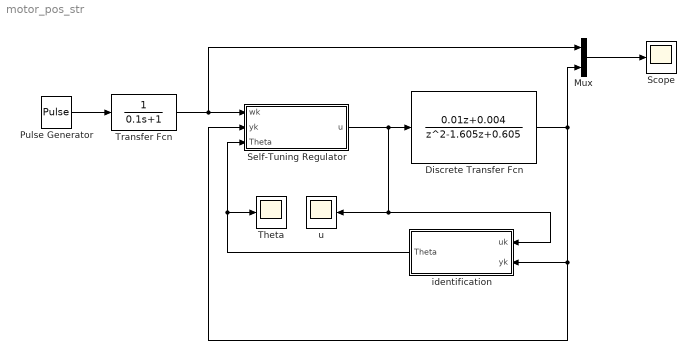
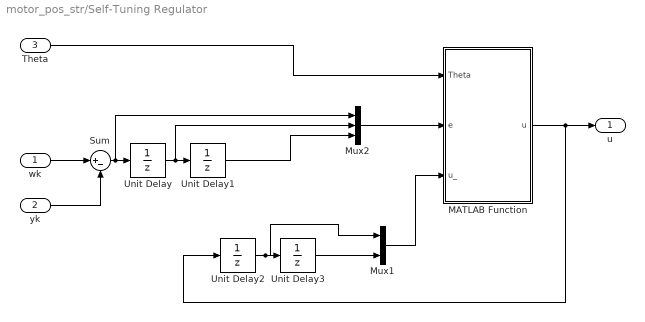
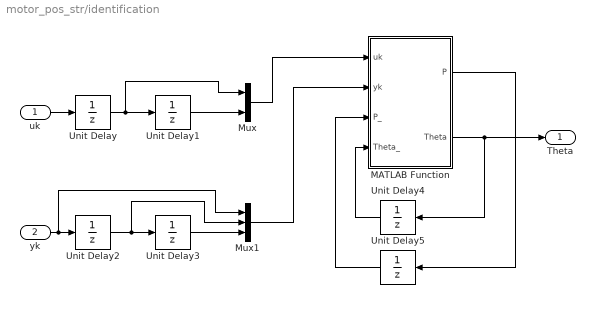
== matlab function motor_pos_str/Self-Tuning
Regulator/MATLAB Function ==
% Ham tinh thong so bo dieu khien theo pp dat cuc lien tuc
function u = STR_pp1(Theta,e,u_)

T0 = 0.005;
xi = 0.9;
wn = 50;

% Gan lai thong so de thuan tien viec tinh toan
a1 = Theta(1);
a2 = Theta(2);
b1 = Theta(3);
b2 = Theta(4);

% Tinh thong so bo dieu khien
if(xi<1)
d1 = -2*exp(-xi*wn*T0)*cos(wn*T0*sqrt(1-xi^2)); % xi<1
else
d1 = -2*exp(-xi*wn*T0)*cosh(wn*T0*sqrt(xi^2-1)); % xi>1
end
d2 = exp(-2*xi*wn*T0);
r1 = (b1+b2)*(a1*b1*b2-a2*b1^2-b2^2);
s1 = a2*((b1+b2)*(a1*b2-a2*b1)+b2*(b1*d2-b2*d1-b2));
q2 = s1/r1;
gama = q2*b2/a2;
q1 = a2/b2-q2*(b1/b2-a1/a2+1);
q0 = 1/b1*(d1+1-a1-gama);

% Luat dieu khien
u = q0*e(1) + q1*e(2) + q2*e(3) + (1-gama)*u_(1) + gama*u_(2);

== matlab function motor_pos_str/identification/MATLAB Function ==
function [P,Theta] = Uocluong(uk,yk,P_,Theta_)
lamda = 0.96;
PHI = [-yk(2); -yk(3); uk(1); uk(2)];
e = yk(1) - PHI'*Theta_;
L = P_*PHI / (lamda + PHI'*P_*PHI);
P = 1/lamda*(P_ - P_*PHI*PHI'*P_ /(lamda + PHI'*P_*PHI));
Theta = Theta_ + L*e;

/*
 * motor_pos_str.c
 *
 * Code generation for model "motor_pos_str".
 *
 * Model version              : 1.1
 * Simulink Coder version : 8.14 (R2018a) 06-Feb-2018
 * C source code generated on : Thu Dec 31 10:35:15 2020
 *
 * Target selection: grt.tlc
 * Note: GRT includes extra infrastructure and instrumentation for prototyping
 * Embedded hardware selection: Intel->x86-64 (Windows64)
 * Code generation objectives: Unspecified
 * Validation result: Not run
 */

#include "motor_pos_str.h"
#include "motor_pos_str_private.h"

/* Block signals (default storage) */
B_motor_pos_str_T motor_pos_str_B;

/* Continuous states */
X_motor_pos_str_T motor_pos_str_X;

/* Block states (default storage) */
DW_motor_pos_str_T motor_pos_str_DW;

/* Real-time model */
RT_MODEL_motor_pos_str_T motor_pos_str_M_;
RT_MODEL_motor_pos_str_T *const motor_pos_str_M = &motor_pos_str_M_;

/*
 * This function updates continuous states using the ODE3 fixed-step
 * solver algorithm
 */
static void rt_ertODEUpdateContinuousStates(RTWSolverInfo *si )
{
  /* Solver Matrices */
  static const real_T rt_ODE3_A[3] = {
    1.0/2.0, 3.0/4.0, 1.0
  };

  static const real_T rt_ODE3_B[3][3] = {
    { 1.0/2.0, 0.0, 0.0 },

    { 0.0, 3.0/4.0, 0.0 },

    { 2.0/9.0, 1.0/3.0, 4.0/9.0 }
  };

  time_T t = rtsiGetT(si);
  time_T tnew = rtsiGetSolverStopTime(si);
  time_T h = rtsiGetStepSize(si);
  real_T *x = rtsiGetContStates(si);
  ODE3_IntgData *id = (ODE3_IntgData *)rtsiGetSolverData(si);
  real_T *y = id->y;
  real_T *f0 = id->f[0];
  real_T *f1 = id->f[1];
  real_T *f2 = id->f[2];
  real_T hB[3];
  int_T i;
  int_T nXc = 1;
  rtsiSetSimTimeStep(si,MINOR_TIME_STEP);

  /* Save the state values at time t in y, we'll use x as ynew. */
  (void) memcpy(y, x,
                (uint_T)nXc*sizeof(real_T));

  /* Assumes that rtsiSetT and ModelOutputs are up-to-date */
  /* f0 = f(t,y) */
  rtsiSetdX(si, f0);
  motor_pos_str_derivatives();

  /* f(:,2) = feval(odefile, t + hA(1), y + f*hB(:,1), args(:)(*)); */
  hB[0] = h * rt_ODE3_B[0][0];
  for (i = 0; i < nXc; i++) {
    x[i] = y[i] + (f0[i]*hB[0]);
  }

  rtsiSetT(si, t + h*rt_ODE3_A[0]);
  rtsiSetdX(si, f1);
  motor_pos_str_step();
  motor_pos_str_derivatives();

  /* f(:,3) = feval(odefile, t + hA(2), y + f*hB(:,2), args(:)(*)); */
  for (i = 0; i <= 1; i++) {
    hB[i] = h * rt_ODE3_B[1][i];
  }

  for (i = 0; i < nXc; i++) {
    x[i] = y[i] + (f0[i]*hB[0] + f1[i]*hB[1]);
  }

  rtsiSetT(si, t + h*rt_ODE3_A[1]);
  rtsiSetdX(si, f2);
  motor_pos_str_step();
  motor_pos_str_derivatives();

  /* tnew = t + hA(3);
     ynew = y + f*hB(:,3); */
  for (i = 0; i <= 2; i++) {
    hB[i] = h * rt_ODE3_B[2][i];
  }

  for (i = 0; i < nXc; i++) {
    x[i] = y[i] + (f0[i]*hB[0] + f1[i]*hB[1] + f2[i]*hB[2]);
  }

  rtsiSetT(si, tnew);
  rtsiSetSimTimeStep(si,MAJOR_TIME_STEP);
}

/* Model step function */
void motor_pos_str_step(void)
{
  if (rtmIsMajorTimeStep(motor_pos_str_M)) {
    /* set solver stop time */
    if (!(motor_pos_str_M->Timing.clockTick0+1)) {
      rtsiSetSolverStopTime(&motor_pos_str_M->solverInfo,
                            ((motor_pos_str_M->Timing.clockTickH0 + 1) *
        motor_pos_str_M->Timing.stepSize0 * 4294967296.0));
    } else {
      rtsiSetSolverStopTime(&motor_pos_str_M->solverInfo,
                            ((motor_pos_str_M->Timing.clockTick0 + 1) *
        motor_pos_str_M->Timing.stepSize0 + motor_pos_str_M->Timing.clockTickH0 *
        motor_pos_str_M->Timing.stepSize0 * 4294967296.0));
    }
  }                                    /* end MajorTimeStep */

  /* Update absolute time of base rate at minor time step */
  if (rtmIsMinorTimeStep(motor_pos_str_M)) {
    motor_pos_str_M->Timing.t[0] = rtsiGetT(&motor_pos_str_M->solverInfo);
  }

  {
    real_T PHI[4];
    int32_T i;
    real_T y;
    real_T b_y;
    real_T tmp[16];
    real_T tmp_0[16];
    int32_T i_0;
    real_T rtb_TmpSignalConversionAtSFun_0[4];
    real_T PHI_0;

    /* TransferFcn: '<Root>/Transfer Fcn' */
    motor_pos_str_B.TransferFcn = 0.0;
    motor_pos_str_B.TransferFcn += motor_pos_str_P.TransferFcn_C *
      motor_pos_str_X.TransferFcn_CSTATE;
    if (rtmIsMajorTimeStep(motor_pos_str_M)) {
      /* DiscreteTransferFcn: '<Root>/Discrete Transfer Fcn' */
      motor_pos_str_B.DiscreteTransferFcn =
        motor_pos_str_P.DiscreteTransferFcn_NumCoef[0] *
        motor_pos_str_DW.DiscreteTransferFcn_states[0] +
        motor_pos_str_P.DiscreteTransferFcn_NumCoef[1] *
        motor_pos_str_DW.DiscreteTransferFcn_states[1];

      /* UnitDelay: '<S2>/Unit Delay' */
      motor_pos_str_B.UnitDelay = motor_pos_str_DW.UnitDelay_DSTATE;

      /* UnitDelay: '<S2>/Unit Delay1' */
      motor_pos_str_B.UnitDelay1 = motor_pos_str_DW.UnitDelay1_DSTATE;

      /* UnitDelay: '<S2>/Unit Delay2' */
      motor_pos_str_B.UnitDelay2 = motor_pos_str_DW.UnitDelay2_DSTATE;

      /* UnitDelay: '<S2>/Unit Delay3' */
      motor_pos_str_B.UnitDelay3 = motor_pos_str_DW.UnitDelay3_DSTATE;

      /* UnitDelay: '<S2>/Unit Delay5' */
      memcpy(&motor_pos_str_B.UnitDelay5[0],
             &motor_pos_str_DW.UnitDelay5_DSTATE[0], sizeof(real_T) << 4U);

      /* UnitDelay: '<S2>/Unit Delay4' */
      memcpy(&motor_pos_str_B.UnitDelay4[0],
             &motor_pos_str_DW.UnitDelay4_DSTATE[0], sizeof(real_T) << 4U);
    }

    /* MATLAB Function: '<S2>/MATLAB Function' incorporates:
     *  SignalConversion: '<S4>/TmpSignal ConversionAt SFunction Inport2'
     */
    PHI[0] = -motor_pos_str_B.UnitDelay2;
    PHI[1] = -motor_pos_str_B.UnitDelay3;
    PHI[2] = motor_pos_str_B.UnitDelay;
    PHI[3] = motor_pos_str_B.UnitDelay1;
    y = 0.0;
    b_y = 0.0;
    for (i = 0; i < 4; i++) {
      PHI_0 = motor_pos_str_B.UnitDelay5[(i << 2) + 3] *
        motor_pos_str_B.UnitDelay1 + (motor_pos_str_B.UnitDelay5[(i << 2) + 2] *
        motor_pos_str_B.UnitDelay + (motor_pos_str_B.UnitDelay5[(i << 2) + 1] *
        -motor_pos_str_B.UnitDelay3 + motor_pos_str_B.UnitDelay5[i << 2] *
        -motor_pos_str_B.UnitDelay2));
      y += PHI_0 * PHI[i];
      PHI_0 = motor_pos_str_B.UnitDelay5[(i << 2) + 3] *
        motor_pos_str_B.UnitDelay1 + (motor_pos_str_B.UnitDelay5[(i << 2) + 2] *
        motor_pos_str_B.UnitDelay + (motor_pos_str_B.UnitDelay5[(i << 2) + 1] *
        -motor_pos_str_B.UnitDelay3 + motor_pos_str_B.UnitDelay5[i << 2] *
        -motor_pos_str_B.UnitDelay2));
      b_y += PHI_0 * PHI[i];
    }

    for (i = 0; i < 4; i++) {
      PHI_0 = motor_pos_str_B.UnitDelay5[i + 12] * motor_pos_str_B.UnitDelay1 +
        (motor_pos_str_B.UnitDelay5[i + 8] * motor_pos_str_B.UnitDelay +
         (motor_pos_str_B.UnitDelay5[i + 4] * -motor_pos_str_B.UnitDelay3 +
          motor_pos_str_B.UnitDelay5[i] * -motor_pos_str_B.UnitDelay2));
      tmp[i] = PHI_0 * -motor_pos_str_B.UnitDelay2;
      tmp[i + 4] = PHI_0 * -motor_pos_str_B.UnitDelay3;
      tmp[i + 8] = PHI_0 * motor_pos_str_B.UnitDelay;
      tmp[i + 12] = PHI_0 * motor_pos_str_B.UnitDelay1;
      for (i_0 = 0; i_0 < 4; i_0++) {
        tmp_0[i + (i_0 << 2)] = motor_pos_str_B.UnitDelay5[(i_0 << 2) + i] -
          (((motor_pos_str_B.UnitDelay5[(i_0 << 2) + 1] * tmp[i + 4] +
             motor_pos_str_B.UnitDelay5[i_0 << 2] * tmp[i]) +
            motor_pos_str_B.UnitDelay5[(i_0 << 2) + 2] * tmp[i + 8]) +
           motor_pos_str_B.UnitDelay5[(i_0 << 2) + 3] * tmp[i + 12]) / (0.96 +
          b_y);
      }
    }

    for (i = 0; i < 4; i++) {
      motor_pos_str_B.P[i << 2] = tmp_0[i << 2] * 1.0416666666666667;
      motor_pos_str_B.P[1 + (i << 2)] = tmp_0[(i << 2) + 1] * 1.0416666666666667;
      motor_pos_str_B.P[2 + (i << 2)] = tmp_0[(i << 2) + 2] * 1.0416666666666667;
      motor_pos_str_B.P[3 + (i << 2)] = tmp_0[(i << 2) + 3] * 1.0416666666666667;
      PHI[i] = (((motor_pos_str_B.UnitDelay5[i + 4] *
                  -motor_pos_str_B.UnitDelay3 + motor_pos_str_B.UnitDelay5[i] *
                  -motor_pos_str_B.UnitDelay2) + motor_pos_str_B.UnitDelay5[i +
                 8] * motor_pos_str_B.UnitDelay) + motor_pos_str_B.UnitDelay5[i
                + 12] * motor_pos_str_B.UnitDelay1) / (0.96 + y);
      rtb_TmpSignalConversionAtSFun_0[i] = motor_pos_str_B.DiscreteTransferFcn -
        (((motor_pos_str_B.UnitDelay4[(i << 2) + 1] *
           -motor_pos_str_B.UnitDelay3 + motor_pos_str_B.UnitDelay4[i << 2] *
           -motor_pos_str_B.UnitDelay2) + motor_pos_str_B.UnitDelay4[(i << 2) +
          2] * motor_pos_str_B.UnitDelay) + motor_pos_str_B.UnitDelay4[(i << 2)
         + 3] * motor_pos_str_B.UnitDelay1);
    }

    for (i = 0; i < 4; i++) {
      motor_pos_str_B.Theta[i] = PHI[i] * rtb_TmpSignalConversionAtSFun_0[0] +
        motor_pos_str_B.UnitDelay4[i];
      motor_pos_str_B.Theta[i + 4] = motor_pos_str_B.UnitDelay4[i + 4] + PHI[i] *
        rtb_TmpSignalConversionAtSFun_0[1];
      motor_pos_str_B.Theta[i + 8] = motor_pos_str_B.UnitDelay4[i + 8] + PHI[i] *
        rtb_TmpSignalConversionAtSFun_0[2];
      motor_pos_str_B.Theta[i + 12] = motor_pos_str_B.UnitDelay4[i + 12] + PHI[i]
        * rtb_TmpSignalConversionAtSFun_0[3];
    }

    /* End of MATLAB Function: '<S2>/MATLAB Function' */
    if (rtmIsMajorTimeStep(motor_pos_str_M)) {
      /* DiscretePulseGenerator: '<Root>/Pulse Generator' */
      motor_pos_str_B.PulseGenerator = (motor_pos_str_DW.clockTickCounter <
        motor_pos_str_P.PulseGenerator_Duty) &&
        (motor_pos_str_DW.clockTickCounter >= 0) ?
        motor_pos_str_P.PulseGenerator_Amp : 0.0;
      if (motor_pos_str_DW.clockTickCounter >=
          motor_pos_str_P.PulseGenerator_Period - 1.0) {
        motor_pos_str_DW.clockTickCounter = 0;
      } else {
        motor_pos_str_DW.clockTickCounter++;
      }

      /* End of DiscretePulseGenerator: '<Root>/Pulse Generator' */

      /* UnitDelay: '<S1>/Unit Delay' */
      motor_pos_str_B.UnitDelay_d = motor_pos_str_DW.UnitDelay_DSTATE_h;

      /* UnitDelay: '<S1>/Unit Delay1' */
      motor_pos_str_B.UnitDelay1_n = motor_pos_str_DW.UnitDelay1_DSTATE_o;

      /* UnitDelay: '<S1>/Unit Delay2' */
      motor_pos_str_B.UnitDelay2_o = motor_pos_str_DW.UnitDelay2_DSTATE_d;

      /* UnitDelay: '<S1>/Unit Delay3' */
      motor_pos_str_B.UnitDelay3_e = motor_pos_str_DW.UnitDelay3_DSTATE_a;
    }

    /* Sum: '<S1>/Sum' */
    motor_pos_str_B.Sum = motor_pos_str_B.TransferFcn -
      motor_pos_str_B.DiscreteTransferFcn;
  }

  if (rtmIsMajorTimeStep(motor_pos_str_M)) {
    /* Matfile logging */
    rt_UpdateTXYLogVars(motor_pos_str_M->rtwLogInfo, (motor_pos_str_M->Timing.t));
  }                                    /* end MajorTimeStep */

  if (rtmIsMajorTimeStep(motor_pos_str_M)) {
    real_T denAccum;
    if (rtmIsMajorTimeStep(motor_pos_str_M)) {
      /* Update for DiscreteTransferFcn: '<Root>/Discrete Transfer Fcn' */
      denAccum = ((0.0 - motor_pos_str_P.DiscreteTransferFcn_DenCoef[1] *
                   motor_pos_str_DW.DiscreteTransferFcn_states[0]) -
                  motor_pos_str_P.DiscreteTransferFcn_DenCoef[2] *
                  motor_pos_str_DW.DiscreteTransferFcn_states[1]) /
        motor_pos_str_P.DiscreteTransferFcn_DenCoef[0];
      motor_pos_str_DW.DiscreteTransferFcn_states[1] =
        motor_pos_str_DW.DiscreteTransferFcn_states[0];
      motor_pos_str_DW.DiscreteTransferFcn_states[0] = denAccum;

      /* Update for UnitDelay: '<S2>/Unit Delay' */
      motor_pos_str_DW.UnitDelay_DSTATE = 0.0;

      /* Update for UnitDelay: '<S2>/Unit Delay1' */
      motor_pos_str_DW.UnitDelay1_DSTATE = motor_pos_str_B.UnitDelay;

      /* Update for UnitDelay: '<S2>/Unit Delay2' */
      motor_pos_str_DW.UnitDelay2_DSTATE = motor_pos_str_B.DiscreteTransferFcn;

      /* Update for UnitDelay: '<S2>/Unit Delay3' */
      motor_pos_str_DW.UnitDelay3_DSTATE = motor_pos_str_B.UnitDelay2;

      /* Update for UnitDelay: '<S2>/Unit Delay5' */
      memcpy(&motor_pos_str_DW.UnitDelay5_DSTATE[0], &motor_pos_str_B.P[0],
             sizeof(real_T) << 4U);

      /* Update for UnitDelay: '<S2>/Unit Delay4' */
      memcpy(&motor_pos_str_DW.UnitDelay4_DSTATE[0], &motor_pos_str_B.Theta[0],
             sizeof(real_T) << 4U);

      /* Update for UnitDelay: '<S1>/Unit Delay' */
      motor_pos_str_DW.UnitDelay_DSTATE_h = motor_pos_str_B.Sum;

      /* Update for UnitDelay: '<S1>/Unit Delay1' */
      motor_pos_str_DW.UnitDelay1_DSTATE_o = motor_pos_str_B.UnitDelay_d;

      /* Update for UnitDelay: '<S1>/Unit Delay2' */
      motor_pos_str_DW.UnitDelay2_DSTATE_d = 0.0;

      /* Update for UnitDelay: '<S1>/Unit Delay3' */
      motor_pos_str_DW.UnitDelay3_DSTATE_a = motor_pos_str_B.UnitDelay2_o;
    }
  }                                    /* end MajorTimeStep */

  if (rtmIsMajorTimeStep(motor_pos_str_M)) {
    /* signal main to stop simulation */
    {                                  /* Sample time: [0.0s, 0.0s] */
      if ((rtmGetTFinal(motor_pos_str_M)!=-1) &&
          !((rtmGetTFinal(motor_pos_str_M)-(((motor_pos_str_M->Timing.clockTick1
               +motor_pos_str_M->Timing.clockTickH1* 4294967296.0)) * 0.005)) >
            (((motor_pos_str_M->Timing.clockTick1+
               motor_pos_str_M->Timing.clockTickH1* 4294967296.0)) * 0.005) *
            (DBL_EPSILON))) {
        rtmSetErrorStatus(motor_pos_str_M, "Simulation finished");
      }
    }

    rt_ertODEUpdateContinuousStates(&motor_pos_str_M->solverInfo);

    /* Update absolute time for base rate */
    /* The "clockTick0" counts the number of times the code of this task has
     * been executed. The absolute time is the multiplication of "clockTick0"
     * and "Timing.stepSize0". Size of "clockTick0" ensures timer will not
     * overflow during the application lifespan selected.
     * Timer of this task consists of two 32 bit unsigned integers.
     * The two integers represent the low bits Timing.clockTick0 and the high bits
     * Timing.clockTickH0. When the low bit overflows to 0, the high bits increment.
     */
    if (!(++motor_pos_str_M->Timing.clockTick0)) {
      ++motor_pos_str_M->Timing.clockTickH0;
    }

    motor_pos_str_M->Timing.t[0] = rtsiGetSolverStopTime
      (&motor_pos_str_M->solverInfo);

    {
      /* Update absolute timer for sample time: [0.005s, 0.0s] */
      /* The "clockTick1" counts the number of times the code of this task has
       * been executed. The resolution of this integer timer is 0.005, which is the step size
       * of the task. Size of "clockTick1" ensures timer will not overflow during the
       * application lifespan selected.
       * Timer of this task consists of two 32 bit unsigned integers.
       * The two integers represent the low bits Timing.clockTick1 and the high bits
       * Timing.clockTickH1. When the low bit overflows to 0, the high bits increment.
       */
      motor_pos_str_M->Timing.clockTick1++;
      if (!motor_pos_str_M->Timing.clockTick1) {
        motor_pos_str_M->Timing.clockTickH1++;
      }
    }
  }                                    /* end MajorTimeStep */
}
